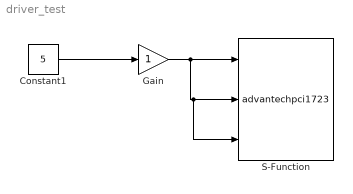
/*
 * driver_test.c
 *
 * Academic License - for use in teaching, academic research, and meeting
 * course requirements at degree granting institutions only.  Not for
 * government, commercial, or other organizational use.
 *
 * Code generation for model "driver_test".
 *
 * Model version              : 1.62
 * Simulink Coder version : 8.13 (R2017b) 24-Jul-2017
 * C source code generated on : Mon Dec  3 19:43:00 2018
 *
 * Target selection: slrt.tlc
 * Note: GRT includes extra infrastructure and instrumentation for prototyping
 * Embedded hardware selection: Generic->32-bit x86 compatible
 * Code generation objectives: Unspecified
 * Validation result: Not run
 */

#include "rt_logging_mmi.h"
#include "driver_test_capi.h"
#include "driver_test.h"
#include "driver_test_private.h"

/* Block signals (auto storage) */
B_driver_test_T driver_test_B;

/* Block states (auto storage) */
DW_driver_test_T driver_test_DW;

/* Real-time model */
RT_MODEL_driver_test_T driver_test_M_;
RT_MODEL_driver_test_T *const driver_test_M = &driver_test_M_;

/* Model output function */
static void driver_test_output(void)
{
  /* S-Function (advantechpci1723): '<Root>/S-Function' */

  /* Level2 S-Function Block: '<Root>/S-Function' (advantechpci1723) */
  {
    SimStruct *rts = driver_test_M->childSfunctions[0];
    sfcnOutputs(rts,0);
  }

  /* Gain: '<Root>/Gain' incorporates:
   *  Constant: '<Root>/Constant1'
   */
  driver_test_B.Gain = driver_test_P.Gain_Gain * driver_test_P.Constant1_Value;
}

/* Model update function */
static void driver_test_update(void)
{
  /* Update absolute time for base rate */
  /* The "clockTick0" counts the number of times the code of this task has
   * been executed. The absolute time is the multiplication of "clockTick0"
   * and "Timing.stepSize0". Size of "clockTick0" ensures timer will not
   * overflow during the application lifespan selected.
   * Timer of this task consists of two 32 bit unsigned integers.
   * The two integers represent the low bits Timing.clockTick0 and the high bits
   * Timing.clockTickH0. When the low bit overflows to 0, the high bits increment.
   */
  if (!(++driver_test_M->Timing.clockTick0)) {
    ++driver_test_M->Timing.clockTickH0;
  }

  driver_test_M->Timing.t[0] = driver_test_M->Timing.clockTick0 *
    driver_test_M->Timing.stepSize0 + driver_test_M->Timing.clockTickH0 *
    driver_test_M->Timing.stepSize0 * 4294967296.0;
}
